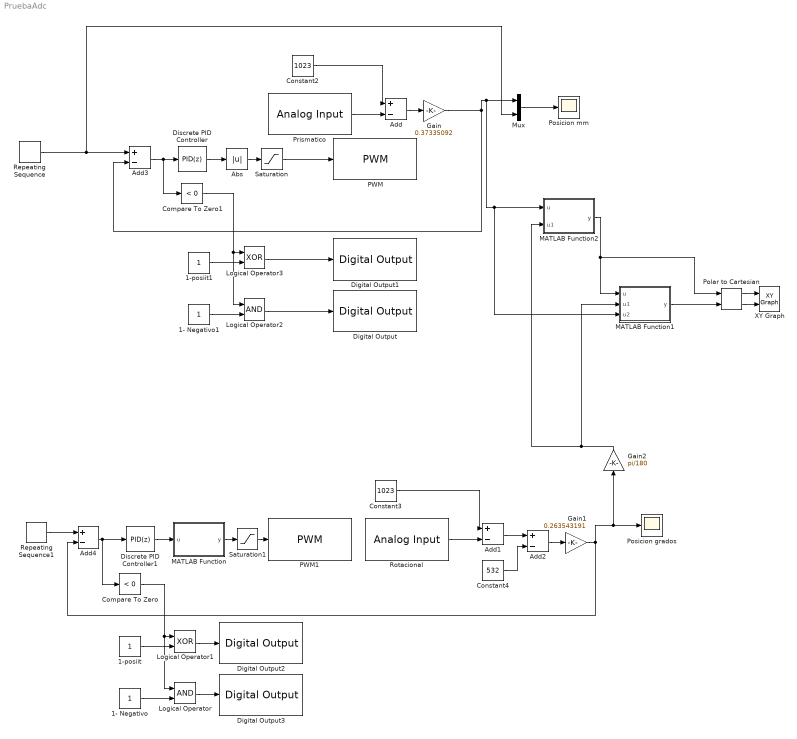
== matlab function PruebaAdc/MATLAB Function1 ==
function y = fcn(u,u1,u2)
if u2<146
d=-sqrt(u^2-(180*sin(u1))^2);
else
d=sqrt(u^2-(180*sin(u1))^2);
end
y = atan2(180*sin(u1),d);

== matlab function PruebaAdc/MATLAB Function ==
function y = fcn(u)
if u>0
    y=2.3*u;
else
    y =-1*u;
end
end

== matlab function PruebaAdc/MATLAB Function2 ==
function y = fcn(u,u1)

y = sqrt(((300-u)^2)+32400-(2*(300-u)*180*cos(u1)));

/*
 * File: PruebaAdc.c
 *
 * Code generated for Simulink model 'PruebaAdc'.
 *
 * Model version                  : 1.20
 * Simulink Coder version         : 8.11 (R2016b) 25-Aug-2016
 * C/C++ source code generated on : Thu Jun 08 15:16:29 2017
 *
 * Target selection: ert.tlc
 * Embedded hardware selection: Atmel->AVR
 * Code generation objectives: Unspecified
 * Validation result: Not run
 */

#include "PruebaAdc.h"
#include "PruebaAdc_private.h"
#include "PruebaAdc_dt.h"
#define PruebaAdc_PinNumber            (2.0)
#define PruebaAdc_PinNumber_j          (3.0)
#define PruebaAdc_PinNumber_ju         (7.0)
#define PruebaAdc_PinNumber_jux        (6.0)

/* Block signals (auto storage) */
B_PruebaAdc_T PruebaAdc_B;

/* Block states (auto storage) */
DW_PruebaAdc_T PruebaAdc_DW;

/* Real-time model */
RT_MODEL_PruebaAdc_T PruebaAdc_M_;
RT_MODEL_PruebaAdc_T *const PruebaAdc_M = &PruebaAdc_M_;
real_T look1_binlxpw(real_T u0, const real_T bp0[], const real_T table[],
                     uint32_T maxIndex)
{
  real_T frac;
  uint32_T iRght;
  uint32_T iLeft;
  uint32_T bpIdx;

  /* Lookup 1-D
     Search method: 'binary'
     Use previous index: 'off'
     Interpolation method: 'Linear'
     Extrapolation method: 'Linear'
     Use last breakpoint for index at or above upper limit: 'off'
     Remove protection against out-of-range input in generated code: 'off'
   */
  /* Prelookup - Index and Fraction
     Index Search method: 'binary'
     Extrapolation method: 'Linear'
     Use previous index: 'off'
     Use last breakpoint for index at or above upper limit: 'off'
     Remove protection against out-of-range input in generated code: 'off'
   */
  if (u0 <= bp0[0UL]) {
    iLeft = 0UL;
    frac = (u0 - bp0[0UL]) / (bp0[1UL] - bp0[0UL]);
  } else if (u0 < bp0[maxIndex]) {
    /* Binary Search */
    bpIdx = maxIndex >> 1UL;
    iLeft = 0UL;
    iRght = maxIndex;
    while (iRght - iLeft > 1UL) {
      if (u0 < bp0[bpIdx]) {
        iRght = bpIdx;
      } else {
        iLeft = bpIdx;
      }

      bpIdx = (iRght + iLeft) >> 1UL;
    }

    frac = (u0 - bp0[iLeft]) / (bp0[iLeft + 1UL] - bp0[iLeft]);
  } else {
    iLeft = maxIndex - 1UL;
    frac = (u0 - bp0[maxIndex - 1UL]) / (bp0[maxIndex] - bp0[maxIndex - 1UL]);
  }

  /* Interpolation 1-D
     Interpolation method: 'Linear'
     Use last breakpoint for index at or above upper limit: 'off'
     Overflow mode: 'portable wrapping'
   */
  return (table[iLeft + 1UL] - table[iLeft]) * frac + table[iLeft];
}

real_T rt_roundd_snf(real_T u)
{
  real_T y;
  if (fabs(u) < 4.503599627370496E+15) {
    if (u >= 0.5) {
      y = floor(u + 0.5);
    } else if (u > -0.5) {
      y = u * 0.0;
    } else {
      y = ceil(u - 0.5);
    }
  } else {
    y = u;
  }

  return y;
}

real_T rt_remd_snf(real_T u0, real_T u1)
{
  real_T y;
  real_T u1_0;
  if (!((!rtIsNaN(u0)) && (!rtIsInf(u0)) && ((!rtIsNaN(u1)) && (!rtIsInf(u1)))))
  {
    y = (rtNaN);
  } else {
    if (u1 < 0.0) {
      u1_0 = ceil(u1);
    } else {
      u1_0 = floor(u1);
    }

    if ((u1 != 0.0) && (u1 != u1_0)) {
      u1_0 = u0 / u1;
      if (fabs(u1_0 - rt_roundd_snf(u1_0)) <= DBL_EPSILON * fabs(u1_0)) {
        y = 0.0;
      } else {
        y = fmod(u0, u1);
      }
    } else {
      y = fmod(u0, u1);
    }
  }

  return y;
}

real_T rt_atan2d_snf(real_T u0, real_T u1)
{
  real_T y;
  int16_T u0_0;
  int16_T u1_0;
  if (rtIsNaN(u0) || rtIsNaN(u1)) {
    y = (rtNaN);
  } else if (rtIsInf(u0) && rtIsInf(u1)) {
    if (u0 > 0.0) {
      u0_0 = 1;
    } else {
      u0_0 = -1;
    }

    if (u1 > 0.0) {
      u1_0 = 1;
    } else {
      u1_0 = -1;
    }

    y = atan2(u0_0, u1_0);
  } else if (u1 == 0.0) {
    if (u0 > 0.0) {
      y = RT_PI / 2.0;
    } else if (u0 < 0.0) {
      y = -(RT_PI / 2.0);
    } else {
      y = 0.0;
    }
  } else {
    y = atan2(u0, u1);
  }

  return y;
}

/* Model step function */
void PruebaAdc_step(void)
{
  uint16_T rtb_Prismatico_0;
  real_T d;
  real_T rtb_Add4;
  real_T rtb_Add3;
  real_T rtb_Sum;
  real_T rtb_Gain2;
  boolean_T rtb_LogicalOperator;
  uint8_T tmp;

  /* SignalConversion: '<S15>/Output' incorporates:
   *  Clock: '<S15>/Clock'
   *  Constant: '<S15>/Constant'
   *  Lookup_n-D: '<S15>/Look-Up Table1'
   *  Math: '<S15>/Math Function'
   *  S-Function (sfun_tstart): '<S15>/startTime'
   *  Sum: '<S15>/Sum'
   */
  PruebaAdc_B.Output = look1_binlxpw(rt_remd_snf(PruebaAdc_M->Timing.t[0] - (0.0),
    PruebaAdc_P.Constant_Value), PruebaAdc_P.LookUpTable1_bp01Data,
    PruebaAdc_P.d, 125UL);

  /* S-Function (arduinoanaloginput_sfcn): '<Root>/Prismatico' */
  rtb_Prismatico_0 = MW_analogRead(PruebaAdc_P.Prismatico_p1);

  /* Gain: '<Root>/Gain' incorporates:
   *  Constant: '<Root>/Constant2'
   *  S-Function (arduinoanaloginput_sfcn): '<Root>/Prismatico'
   *  Sum: '<Root>/Add'
   */
  PruebaAdc_B.Gain = (PruebaAdc_P.Constant2_Value - (real_T)rtb_Prismatico_0) *
    PruebaAdc_P.Gain_Gain;

  /* Sum: '<Root>/Add3' */
  rtb_Add3 = PruebaAdc_B.Output - PruebaAdc_B.Gain;

  /* RelationalOperator: '<S2>/Compare' incorporates:
   *  Constant: '<S2>/Constant'
   */
  rtb_LogicalOperator = (rtb_Add3 < PruebaAdc_P.Constant_Value_f);

  /* Start for MATLABSystem: '<S3>/Digital Output' incorporates:
   *  Constant: '<Root>/1- Negativo1'
   *  DataTypeConversion: '<S3>/Data Type Conversion'
   *  Logic: '<Root>/Logical Operator2'
   *  MATLABSystem: '<S3>/Digital Output'
   */
  writeDigitalPin((uint8_T)PruebaAdc_PinNumber, (uint8_T)(rtb_LogicalOperator &&
    (PruebaAdc_P.uNegativo1_Value != 0.0)));

  /* Start for MATLABSystem: '<S4>/Digital Output' incorporates:
   *  Constant: '<Root>/1-posiit1'
   *  DataTypeConversion: '<S4>/Data Type Conversion'
   *  Logic: '<Root>/Logical Operator3'
   *  MATLABSystem: '<S4>/Digital Output'
   */
  writeDigitalPin((uint8_T)PruebaAdc_PinNumber_j, (uint8_T)((int8_T)
    rtb_LogicalOperator ^ (int8_T)(PruebaAdc_P.uposiit1_Value != 0.0)));

  /* S-Function (arduinoanaloginput_sfcn): '<Root>/Rotacional' */
  rtb_Prismatico_0 = MW_analogRead(PruebaAdc_P.Rotacional_p1);

  /* Gain: '<Root>/Gain1' incorporates:
   *  Constant: '<Root>/Constant3'
   *  Constant: '<Root>/Constant4'
   *  S-Function (arduinoanaloginput_sfcn): '<Root>/Rotacional'
   *  Sum: '<Root>/Add1'
   *  Sum: '<Root>/Add2'
   */
  PruebaAdc_B.Gain1 = ((PruebaAdc_P.Constant3_Value - (real_T)rtb_Prismatico_0)
                       - PruebaAdc_P.Constant4_Value) * PruebaAdc_P.Gain1_Gain;

  /* Sum: '<Root>/Add4' incorporates:
   *  Clock: '<S16>/Clock'
   *  Constant: '<S16>/Constant'
   *  Lookup_n-D: '<S16>/Look-Up Table1'
   *  Math: '<S16>/Math Function'
   *  S-Function (sfun_tstart): '<S16>/startTime'
   *  Sum: '<S16>/Sum'
   */
  rtb_Add4 = look1_binlxpw(rt_remd_snf(PruebaAdc_M->Timing.t[0] - (0.0),
    PruebaAdc_P.Constant_Value_h), PruebaAdc_P.LookUpTable1_bp01Data_o,
    PruebaAdc_P.phi, 125UL) - PruebaAdc_B.Gain1;

  /* RelationalOperator: '<S1>/Compare' incorporates:
   *  Constant: '<S1>/Constant'
   */
  rtb_LogicalOperator = (rtb_Add4 < PruebaAdc_P.Constant_Value_fj);

  /* Start for MATLABSystem: '<S5>/Digital Output' incorporates:
   *  Constant: '<Root>/1-posiit'
   *  DataTypeConversion: '<S5>/Data Type Conversion'
   *  Logic: '<Root>/Logical Operator1'
   *  MATLABSystem: '<S5>/Digital Output'
   */
  writeDigitalPin((uint8_T)PruebaAdc_PinNumber_ju, (uint8_T)((int8_T)
    rtb_LogicalOperator ^ (int8_T)(PruebaAdc_P.uposiit_Value != 0.0)));

  /* Start for MATLABSystem: '<S6>/Digital Output' incorporates:
   *  Constant: '<Root>/1- Negativo'
   *  DataTypeConversion: '<S6>/Data Type Conversion'
   *  Logic: '<Root>/Logical Operator'
   *  MATLABSystem: '<S6>/Digital Output'
   */
  writeDigitalPin((uint8_T)PruebaAdc_PinNumber_jux, (uint8_T)
                  (rtb_LogicalOperator && (PruebaAdc_P.uNegativo_Value != 0.0)));

  /* Gain: '<S7>/Filter Coefficient' incorporates:
   *  DiscreteIntegrator: '<S7>/Filter'
   *  Gain: '<S7>/Derivative Gain'
   *  Sum: '<S7>/SumD'
   */
  PruebaAdc_B.FilterCoefficient = (PruebaAdc_P.DiscretePIDController_D *
    rtb_Add3 - PruebaAdc_DW.Filter_DSTATE) * PruebaAdc_P.DiscretePIDController_N;

  /* Abs: '<Root>/Abs' incorporates:
   *  DiscreteIntegrator: '<S7>/Integrator'
   *  Gain: '<S7>/Proportional Gain'
   *  Sum: '<S7>/Sum'
   */
  rtb_Sum = fabs((PruebaAdc_P.DiscretePIDController_P * rtb_Add3 +
                  PruebaAdc_DW.Integrator_DSTATE) +
                 PruebaAdc_B.FilterCoefficient);

  /* Saturate: '<Root>/Saturation' */
  if (rtb_Sum > PruebaAdc_P.Saturation_UpperSat) {
    /* DataTypeConversion: '<S12>/Data Type Conversion' */
    rtb_Sum = PruebaAdc_P.Saturation_UpperSat;
  } else {
    if (rtb_Sum < PruebaAdc_P.Saturation_LowerSat) {
      /* DataTypeConversion: '<S12>/Data Type Conversion' */
      rtb_Sum = PruebaAdc_P.Saturation_LowerSat;
    }
  }

  /* End of Saturate: '<Root>/Saturation' */

  /* DataTypeConversion: '<S12>/Data Type Conversion' */
  if (rtb_Sum < 256.0) {
    if (rtb_Sum >= 0.0) {
      tmp = (uint8_T)rtb_Sum;
    } else {
      tmp = 0U;
    }
  } else {
    tmp = MAX_uint8_T;
  }

  /* S-Function (arduinoanalogoutput_sfcn): '<S12>/PWM' */
  MW_analogWrite(PruebaAdc_P.PWM_pinNumber, tmp);

  /* Gain: '<S8>/Filter Coefficient' incorporates:
   *  DiscreteIntegrator: '<S8>/Filter'
   *  Gain: '<S8>/Derivative Gain'
   *  Sum: '<S8>/SumD'
   */
  PruebaAdc_B.FilterCoefficient_n = (PruebaAdc_P.DiscretePIDController1_D *
    rtb_Add4 - PruebaAdc_DW.Filter_DSTATE_g) *
    PruebaAdc_P.DiscretePIDController1_N;

  /* Sum: '<S8>/Sum' incorporates:
   *  DiscreteIntegrator: '<S8>/Integrator'
   *  Gain: '<S8>/Proportional Gain'
   */
  rtb_Sum = (PruebaAdc_P.DiscretePIDController1_P * rtb_Add4 +
             PruebaAdc_DW.Integrator_DSTATE_a) + PruebaAdc_B.FilterCoefficient_n;

  /* MATLAB Function: '<Root>/MATLAB Function' */
  /* MATLAB Function 'MATLAB Function': '<S9>:1' */
  /* '<S9>:1:2' if u>0 */
  if (rtb_Sum > 0.0) {
    /* '<S9>:1:3' y=2.3*u; */
    rtb_Sum *= 2.3;
  } else {
    /* '<S9>:1:4' else */
    /* '<S9>:1:5' y =-1*u; */
    rtb_Sum = -rtb_Sum;
  }

  /* End of MATLAB Function: '<Root>/MATLAB Function' */

  /* Saturate: '<Root>/Saturation1' */
  if (rtb_Sum > PruebaAdc_P.Saturation1_UpperSat) {
    /* DataTypeConversion: '<S13>/Data Type Conversion' */
    rtb_Sum = PruebaAdc_P.Saturation1_UpperSat;
  } else {
    if (rtb_Sum < PruebaAdc_P.Saturation1_LowerSat) {
      /* DataTypeConversion: '<S13>/Data Type Conversion' */
      rtb_Sum = PruebaAdc_P.Saturation1_LowerSat;
    }
  }

  /* End of Saturate: '<Root>/Saturation1' */

  /* DataTypeConversion: '<S13>/Data Type Conversion' */
  if (rtb_Sum < 256.0) {
    if (rtb_Sum >= 0.0) {
      tmp = (uint8_T)rtb_Sum;
    } else {
      tmp = 0U;
    }
  } else {
    tmp = MAX_uint8_T;
  }

  /* S-Function (arduinoanalogoutput_sfcn): '<S13>/PWM' */
  MW_analogWrite(PruebaAdc_P.PWM_pinNumber_m, tmp);

  /* Gain: '<Root>/Gain2' */
  rtb_Gain2 = PruebaAdc_P.Gain2_Gain * PruebaAdc_B.Gain1;

  /* MATLAB Function: '<Root>/MATLAB Function2' */
  /* MATLAB Function 'MATLAB Function2': '<S11>:1' */
  /* '<S11>:1:3' y = sqrt(((300-u)^2)+32400-(2*(300-u)*180*cos(u1))); */
  rtb_Sum = sqrt(((300.0 - PruebaAdc_B.Gain) * (300.0 - PruebaAdc_B.Gain) +
                  32400.0) - (300.0 - PruebaAdc_B.Gain) * 2.0 * 180.0 * cos
                 (rtb_Gain2));

  /* MATLAB Function: '<Root>/MATLAB Function1' */
  /* MATLAB Function 'MATLAB Function1': '<S10>:1' */
  /* '<S10>:1:2' if u2<146 */
  if (PruebaAdc_B.Gain < 146.0) {
    /* '<S10>:1:3' d=-sqrt(u^2-(180*sin(u1))^2); */
    d = 180.0 * sin(rtb_Gain2);
    d = -sqrt(rtb_Sum * rtb_Sum - d * d);
  } else {
    /* '<S10>:1:4' else */
    /* '<S10>:1:5' d=sqrt(u^2-(180*sin(u1))^2); */
    d = 180.0 * sin(rtb_Gain2);
    d = sqrt(rtb_Sum * rtb_Sum - d * d);
  }

  /* '<S10>:1:7' y = atan2(180*sin(u1),d); */
  rtb_Gain2 = rt_atan2d_snf(180.0 * sin(rtb_Gain2), d);

  /* End of MATLAB Function: '<Root>/MATLAB Function1' */

  /* Fcn: '<S14>/r->x' */
  PruebaAdc_B.rx = rtb_Sum * cos(rtb_Gain2);

  /* Fcn: '<S14>/theta->y' */
  PruebaAdc_B.thetay = rtb_Sum * sin(rtb_Gain2);

  /* Gain: '<S7>/Integral Gain' */
  PruebaAdc_B.IntegralGain = PruebaAdc_P.DiscretePIDController_I * rtb_Add3;

  /* Gain: '<S8>/Integral Gain' */
  PruebaAdc_B.IntegralGain_g = PruebaAdc_P.DiscretePIDController1_I * rtb_Add4;

  /* Update for DiscreteIntegrator: '<S7>/Integrator' */
  PruebaAdc_DW.Integrator_DSTATE += PruebaAdc_P.Integrator_gainval *
    PruebaAdc_B.IntegralGain;

  /* Update for DiscreteIntegrator: '<S7>/Filter' */
  PruebaAdc_DW.Filter_DSTATE += PruebaAdc_P.Filter_gainval *
    PruebaAdc_B.FilterCoefficient;

  /* Update for DiscreteIntegrator: '<S8>/Integrator' */
  PruebaAdc_DW.Integrator_DSTATE_a += PruebaAdc_P.Integrator_gainval_g *
    PruebaAdc_B.IntegralGain_g;

  /* Update for DiscreteIntegrator: '<S8>/Filter' */
  PruebaAdc_DW.Filter_DSTATE_g += PruebaAdc_P.Filter_gainval_e *
    PruebaAdc_B.FilterCoefficient_n;

  /* External mode */
  rtExtModeUploadCheckTrigger(2);

  {                                    /* Sample time: [0.0s, 0.0s] */
    rtExtModeUpload(0, PruebaAdc_M->Timing.t[0]);
  }

  {                                    /* Sample time: [0.01s, 0.0s] */
    rtExtModeUpload(1, ((PruebaAdc_M->Timing.clockTick1) * 0.01));
  }

  /* signal main to stop simulation */
  {                                    /* Sample time: [0.0s, 0.0s] */
    if ((rtmGetTFinal(PruebaAdc_M)!=-1) &&
        !((rtmGetTFinal(PruebaAdc_M)-PruebaAdc_M->Timing.t[0]) >
          PruebaAdc_M->Timing.t[0] * (DBL_EPSILON))) {
      rtmSetErrorStatus(PruebaAdc_M, "Simulation finished");
    }

    if (rtmGetStopRequested(PruebaAdc_M)) {
      rtmSetErrorStatus(PruebaAdc_M, "Simulation finished");
    }
  }

  /* Update absolute time for base rate */
  /* The "clockTick0" counts the number of times the code of this task has
   * been executed. The absolute time is the multiplication of "clockTick0"
   * and "Timing.stepSize0". Size of "clockTick0" ensures timer will not
   * overflow during the application lifespan selected.
   */
  PruebaAdc_M->Timing.t[0] =
    (++PruebaAdc_M->Timing.clockTick0) * PruebaAdc_M->Timing.stepSize0;

  {
    /* Update absolute timer for sample time: [0.01s, 0.0s] */
    /* The "clockTick1" counts the number of times the code of this task has
     * been executed. The resolution of this integer timer is 0.01, which is the step size
     * of the task. Size of "clockTick1" ensures timer will not overflow during the
     * application lifespan selected.
     */
    PruebaAdc_M->Timing.clockTick1++;
  }
}
